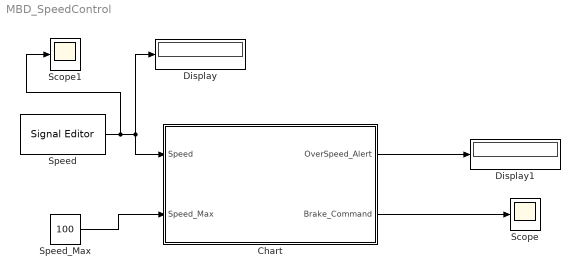
== stateflow chart MBD_SpeedControl/Chart ==
  state Alerte
    OverSpeed_Alert = true;
    Brake_Command = false;
  state Freinage
    OverSpeed_Alert = true;
    Brake_Command = true;
  state Normal
    OverSpeed_Alert = false;
    Brake_Command=false;
  Normal -> Alerte : [Speed > Speed_Max ]
  Alerte -> Freinage [order 1] : [Speed > Speed_Max + 20 ]
  Alerte -> Normal [order 2] : [Speed <= Speed_Max ]
  (default) -> Normal
  Freinage -> Normal : [Speed <= Speed_Max ]
  data: Speed input; Speed_Max input; OverSpeed_Alert output boolean; Brake_Command output boolean

/*
 * File: MBD_SpeedControl.c
 *
 * Code generated for Simulink model 'MBD_SpeedControl'.
 *
 * Model version                  : 1.6
 * Simulink Coder version         : 24.1 (R2024a) 19-Nov-2023
 * C/C++ source code generated on : Sat Nov 15 12:34:41 2025
 *
 * Target selection: ert.tlc
 * Embedded hardware selection: Intel->x86-64 (Windows64)
 * Code generation objectives: Unspecified
 * Validation result: Not run
 */

#include "MBD_SpeedControl.h"
#include "rtwtypes.h"
#include "MBD_SpeedControl_private.h"

/* Named constants for Chart: '<Root>/Chart' */
#define MBD_SpeedControl_IN_Alerte     ((uint8_T)1U)
#define MBD_SpeedControl_IN_Freinage   ((uint8_T)2U)
#define MBD_SpeedControl_IN_Normal     ((uint8_T)3U)

/* Block signals (default storage) */
B_MBD_SpeedControl_T MBD_SpeedControl_B;

/* Block states (default storage) */
DW_MBD_SpeedControl_T MBD_SpeedControl_DW;

/* Real-time model */
static RT_MODEL_MBD_SpeedControl_T MBD_SpeedControl_M_;
RT_MODEL_MBD_SpeedControl_T *const MBD_SpeedControl_M = &MBD_SpeedControl_M_;

/* Model step function */
void MBD_SpeedControl_step(void)
{
  /* FromWorkspace: '<S2>/fromWS_Signal 1' */
  {
    real_T t = MBD_SpeedControl_M->Timing.t[0];
    real_T *pTimeValues = (real_T *)
      MBD_SpeedControl_DW.fromWS_Signal1_PWORK.TimePtr;
    real_T *pDataValues = (real_T *)
      MBD_SpeedControl_DW.fromWS_Signal1_PWORK.DataPtr;
    if (t < pTimeValues[0]) {
      MBD_SpeedControl_B.Signal1 = 0.0;
    } else if (t == pTimeValues[1]) {
      MBD_SpeedControl_B.Signal1 = pDataValues[1];
    } else if (t > pTimeValues[1]) {
      MBD_SpeedControl_B.Signal1 = 0.0;
    } else {
      int_T currTimeIndex = MBD_SpeedControl_DW.fromWS_Signal1_IWORK.PrevIndex;
      if (t < pTimeValues[currTimeIndex]) {
        while (t < pTimeValues[currTimeIndex]) {
          currTimeIndex--;
        }
      } else {
        while (t >= pTimeValues[currTimeIndex + 1]) {
          currTimeIndex++;
        }
      }

      MBD_SpeedControl_B.Signal1 = pDataValues[currTimeIndex];
      MBD_SpeedControl_DW.fromWS_Signal1_IWORK.PrevIndex = currTimeIndex;
    }
  }

  /* Chart: '<Root>/Chart' incorporates:
   *  Constant: '<Root>/Speed_Max'
   */
  if (MBD_SpeedControl_DW.is_active_c3_MBD_SpeedControl == 0U) {
    MBD_SpeedControl_DW.is_active_c3_MBD_SpeedControl = 1U;
    MBD_SpeedControl_DW.is_c3_MBD_SpeedControl = MBD_SpeedControl_IN_Normal;
  } else {
    switch (MBD_SpeedControl_DW.is_c3_MBD_SpeedControl) {
     case MBD_SpeedControl_IN_Alerte:
      if (MBD_SpeedControl_B.Signal1 > 120.0) {
        MBD_SpeedControl_DW.is_c3_MBD_SpeedControl =
          MBD_SpeedControl_IN_Freinage;
      } else if (MBD_SpeedControl_B.Signal1 <= 100.0) {
        MBD_SpeedControl_DW.is_c3_MBD_SpeedControl = MBD_SpeedControl_IN_Normal;
      }
      break;

     case MBD_SpeedControl_IN_Freinage:
      if (MBD_SpeedControl_B.Signal1 <= 100.0) {
        MBD_SpeedControl_DW.is_c3_MBD_SpeedControl = MBD_SpeedControl_IN_Normal;
      }
      break;

     default:
      /* case IN_Normal: */
      if (MBD_SpeedControl_B.Signal1 > 100.0) {
        MBD_SpeedControl_DW.is_c3_MBD_SpeedControl = MBD_SpeedControl_IN_Alerte;
      }
      break;
    }
  }

  /* End of Chart: '<Root>/Chart' */

  /* Update absolute time for base rate */
  /* The "clockTick0" counts the number of times the code of this task has
   * been executed. The absolute time is the multiplication of "clockTick0"
   * and "Timing.stepSize0". Size of "clockTick0" ensures timer will not
   * overflow during the application lifespan selected.
   */
  MBD_SpeedControl_M->Timing.t[0] =
    ((time_T)(++MBD_SpeedControl_M->Timing.clockTick0)) *
    MBD_SpeedControl_M->Timing.stepSize0;

  {
    /* Update absolute timer for sample time: [0.4s, 0.0s] */
    /* The "clockTick1" counts the number of times the code of this task has
     * been executed. The resolution of this integer timer is 0.4, which is the step size
     * of the task. Size of "clockTick1" ensures timer will not overflow during the
     * application lifespan selected.
     */
    MBD_SpeedControl_M->Timing.clockTick1++;
  }
}
